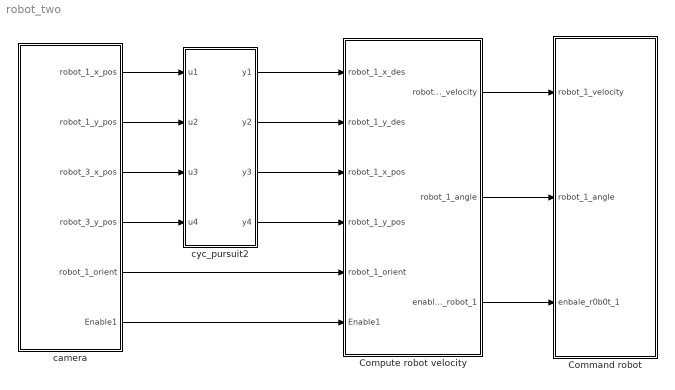
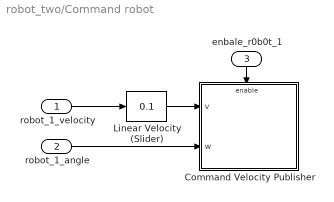
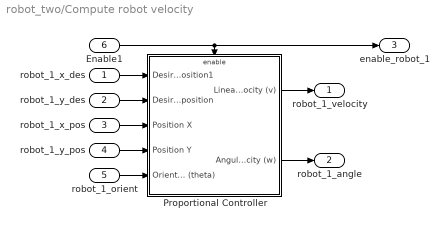
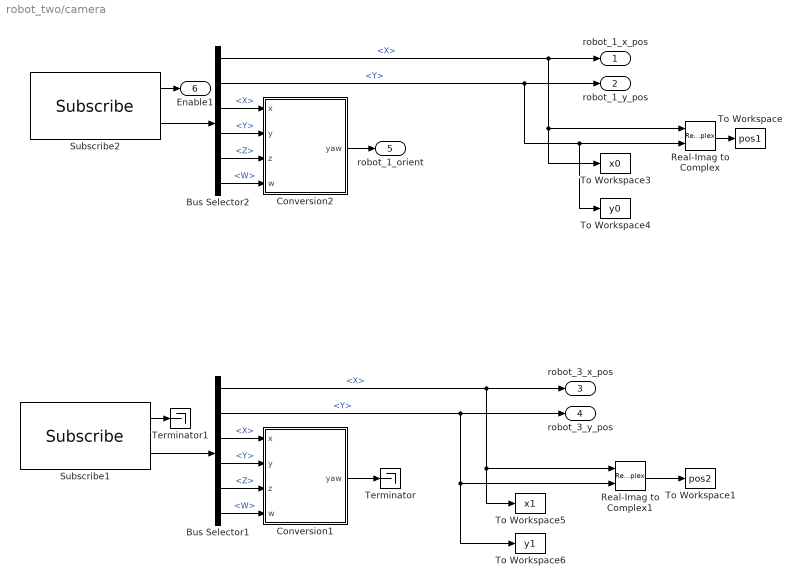
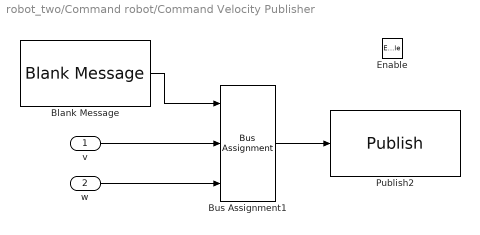
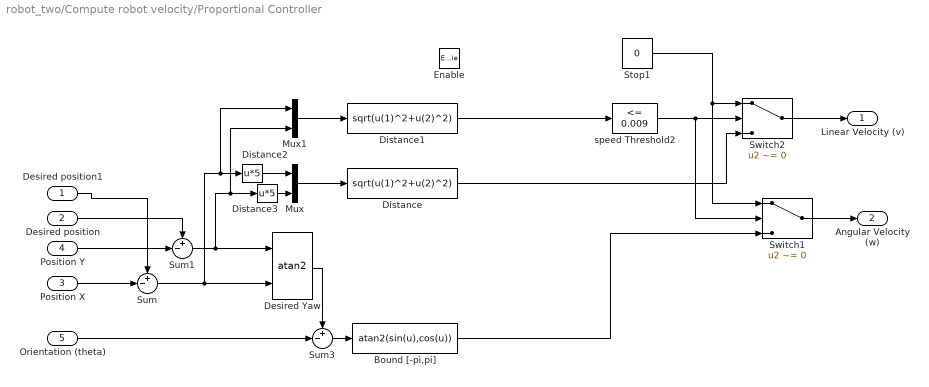
== matlab function robot_two/cyc_pursuit2 ==
function [y1, y2, y3, y4] = fcn(u1, u2, u3, u4)
%#codegen

y1 = ((1-0.2)*u1+(u3*0.2)-(0.75*0.2));
y2 = ((1-0.2)*u2+(0.2*u4)-(1.2990*0.2));
y3=u1;
y4=u2;




%         y1 = ((1-0.2)*u1+(u3*0.2)+(1.5451*0.2));
%         y2 = ((1-0.2)*u2+(0.2*u4)+(4.7553*0.2));
%         y3 = ((1-0.2)*u3+(u5*0.2)-(4.0451*0.2));
%         y4 = ((1-0.2)*u4+(u6*0.2)+(2.9389*0.2));
%         y5 = ((1-0.2)*u5+(u7*0.2)-(4.0451*0.2));
%         y6 = ((1-0.2)*u6+(u8*0.2)-(2.9389*0.2));
%         y7 = ((1-0.2)*u7+(u9*0.2)+(1.5451*0.2));
%         y8 = ((1-0.2)*u8+(u10*0.2)-(4.7553*0.2));
%         y9 = ((1-0.2)*u9+(u1*0.2)+(5*0.2));
%         y10 = ((1-0.2)*u10+(u2*0.2)+(0*0.2));

== matlab function robot_two/camera/Conversion1 ==
function yaw  = quat2eul(x,y,z,w)
%#codegen

% Convert the quaternion to a yaw angle (zyx euler angle)
eul = quat2eul([w,x,y,z]);
yaw = eul(1);

end

== matlab function robot_two/camera/Conversion2 ==
function yaw  = quat2eul(x,y,z,w)
%#codegen

% Convert the quaternion to a yaw angle (zyx euler angle)
eul = quat2eul([w,x,y,z]);
yaw = eul(1);

end

//
// Academic License - for use in teaching, academic research, and meeting
// course requirements at degree granting institutions only.  Not for
// government, commercial, or other organizational use.
//
// File: robot_two.cpp
//
// Code generated for Simulink model 'robot_two'.
//
// Model version                  : 1.17
// Simulink Coder version         : 8.11 (R2016b) 25-Aug-2016
// C/C++ source code generated on : Mon Jan 30 15:01:16 2017
//
// Target selection: ert.tlc
// Embedded hardware selection: Generic->Unspecified (assume 32-bit Generic)
// Code generation objectives: Unspecified
// Validation result: Not run
//
#include "robot_two.h"
#include "robot_two_private.h"
#define robot_two_MessageQueueLen      (105)
#define robot_two_MessageQueueLen_g    (1)

real_T rt_atan2d_snf(real_T u0, real_T u1)
{
  real_T y;
  int32_T u0_0;
  int32_T u1_0;
  if (rtIsNaN(u0) || rtIsNaN(u1)) {
    y = (rtNaN);
  } else if (rtIsInf(u0) && rtIsInf(u1)) {
    if (u0 > 0.0) {
      u0_0 = 1;
    } else {
      u0_0 = -1;
    }

    if (u1 > 0.0) {
      u1_0 = 1;
    } else {
      u1_0 = -1;
    }

    y = atan2((real_T)u0_0, (real_T)u1_0);
  } else if (u1 == 0.0) {
    if (u0 > 0.0) {
      y = RT_PI / 2.0;
    } else if (u0 < 0.0) {
      y = -(RT_PI / 2.0);
    } else {
      y = 0.0;
    }
  } else {
    y = atan2(u0, u1);
  }

  return y;
}

//
// Output and update for atomic system:
//    '<S3>/Conversion1'
//    '<S3>/Conversion2'
//
void robot_two_Conversion1(real_T rtu_x, real_T rtu_y, real_T rtu_z, real_T
  rtu_w, B_Conversion1_robot_two_T *localB)
{
  real_T b_y;
  real_T q_idx_0;
  real_T q_idx_1;
  real_T q_idx_2;

  //  Convert the quaternion to a yaw angle (zyx euler angle)
  // MATLAB Function 'camera/Conversion1': '<S11>:1'
  // '<S11>:1:5' eul = quat2eul([w,x,y,z]);
  b_y = 1.0 / sqrt(((rtu_w * rtu_w + rtu_x * rtu_x) + rtu_y * rtu_y) + rtu_z *
                   rtu_z);
  q_idx_0 = rtu_w * b_y;
  q_idx_1 = rtu_x * b_y;
  q_idx_2 = rtu_y * b_y;
  b_y *= rtu_z;

  // '<S11>:1:6' yaw = eul(1);
  localB->yaw = rt_atan2d_snf((q_idx_1 * q_idx_2 + q_idx_0 * b_y) * 2.0,
    ((q_idx_0 * q_idx_0 + q_idx_1 * q_idx_1) - q_idx_2 * q_idx_2) - b_y * b_y);
}

real_T rt_powd_snf(real_T u0, real_T u1)
{
  real_T y;
  real_T tmp;
  real_T tmp_0;
  if (rtIsNaN(u0) || rtIsNaN(u1)) {
    y = (rtNaN);
  } else {
    tmp = fabs(u0);
    tmp_0 = fabs(u1);
    if (rtIsInf(u1)) {
      if (tmp == 1.0) {
        y = (rtNaN);
      } else if (tmp > 1.0) {
        if (u1 > 0.0) {
          y = (rtInf);
        } else {
          y = 0.0;
        }
      } else if (u1 > 0.0) {
        y = 0.0;
      } else {
        y = (rtInf);
      }
    } else if (tmp_0 == 0.0) {
      y = 1.0;
    } else if (tmp_0 == 1.0) {
      if (u1 > 0.0) {
        y = u0;
      } else {
        y = 1.0 / u0;
      }
    } else if (u1 == 2.0) {
      y = u0 * u0;
    } else if ((u1 == 0.5) && (u0 >= 0.0)) {
      y = sqrt(u0);
    } else if ((u0 < 0.0) && (u1 > floor(u1))) {
      y = (rtNaN);
    } else {
      y = pow(u0, u1);
    }
  }

  return y;
}

// Model step function
void robot_0ModelClass::step()
{
  boolean_T varargout_1;
  boolean_T varargout_1_0;

  // Outputs for Atomic SubSystem: '<S3>/Subscribe2'
  // Start for MATLABSystem: '<S14>/SourceBlock' incorporates:
  //   Inport: '<S16>/In1'
  //   MATLABSystem: '<S14>/SourceBlock'

  varargout_1 = Sub_robot_two_11.getLatestMessage(&robot_two_B.varargout_2);

  // Outputs for Enabled SubSystem: '<S14>/Enabled Subsystem' incorporates:
  //   EnablePort: '<S16>/Enable'

  if (varargout_1) {
    robot_two_B.In1 = robot_two_B.varargout_2;
  }

  // End of Outputs for SubSystem: '<S14>/Enabled Subsystem'
  // End of Outputs for SubSystem: '<S3>/Subscribe2'

  // Outputs for Atomic SubSystem: '<S3>/Subscribe1'
  // Start for MATLABSystem: '<S13>/SourceBlock' incorporates:
  //   Inport: '<S15>/In1'
  //   MATLABSystem: '<S13>/SourceBlock'

  varargout_1_0 = Sub_robot_two_10.getLatestMessage(&robot_two_B.varargout_2);

  // Outputs for Enabled SubSystem: '<S13>/Enabled Subsystem' incorporates:
  //   EnablePort: '<S15>/Enable'

  if (varargout_1_0) {
    robot_two_B.In1_d = robot_two_B.varargout_2;
  }

  // End of Start for MATLABSystem: '<S13>/SourceBlock'
  // End of Outputs for SubSystem: '<S13>/Enabled Subsystem'
  // End of Outputs for SubSystem: '<S3>/Subscribe1'

  // MATLAB Function: '<S3>/Conversion2'
  // MATLAB Function 'cyc_pursuit2': '<S4>:1'
  // '<S4>:1:4' y1 = ((1-0.2)*u1+(u3*0.2)-(0.75*0.2));
  // '<S4>:1:5' y2 = ((1-0.2)*u2+(0.2*u4)-(1.2990*0.2));
  // '<S4>:1:6' y3=u1;
  // '<S4>:1:7' y4=u2;
  //          y1 = ((1-0.2)*u1+(u3*0.2)+(1.5451*0.2));
  //          y2 = ((1-0.2)*u2+(0.2*u4)+(4.7553*0.2));
  //          y3 = ((1-0.2)*u3+(u5*0.2)-(4.0451*0.2));
  //          y4 = ((1-0.2)*u4+(u6*0.2)+(2.9389*0.2));
  //          y5 = ((1-0.2)*u5+(u7*0.2)-(4.0451*0.2));
  //          y6 = ((1-0.2)*u6+(u8*0.2)-(2.9389*0.2));
  //          y7 = ((1-0.2)*u7+(u9*0.2)+(1.5451*0.2));
  //          y8 = ((1-0.2)*u8+(u10*0.2)-(4.7553*0.2));
  //          y9 = ((1-0.2)*u9+(u1*0.2)+(5*0.2));
  //          y10 = ((1-0.2)*u10+(u2*0.2)+(0*0.2));
  robot_two_Conversion1(robot_two_B.In1.Pose.Pose.Orientation.X,
                        robot_two_B.In1.Pose.Pose.Orientation.Y,
                        robot_two_B.In1.Pose.Pose.Orientation.Z,
                        robot_two_B.In1.Pose.Pose.Orientation.W,
                        &robot_two_B.sf_Conversion2);

  // Outputs for Enabled SubSystem: '<S1>/Command Velocity Publisher' incorporates:
  //   EnablePort: '<S5>/Enable'

  // Outputs for Enabled SubSystem: '<S2>/Proportional Controller' incorporates:
  //   EnablePort: '<S9>/Enable'

  // Outputs for Atomic SubSystem: '<S3>/Subscribe2'
  // Start for MATLABSystem: '<S14>/SourceBlock' incorporates:
  //   MATLABSystem: '<S14>/SourceBlock'

  if (varargout_1) {
    // Sum: '<S9>/Sum1' incorporates:
    //   MATLAB Function: '<Root>/cyc_pursuit2'
    //   SignalConversion: '<S3>/SigConversion_InsertedFor_Bus Selector1_at_outport_1'
    //   SignalConversion: '<S3>/SigConversion_InsertedFor_Bus Selector2_at_outport_1'

    robot_two_B.Sum1 = ((0.8 * robot_two_B.In1.Pose.Pose.Position.Y + 0.2 *
                         robot_two_B.In1_d.Pose.Pose.Position.Y) - 0.2598) -
      robot_two_B.In1.Pose.Pose.Position.Y;

    // Sum: '<S9>/Sum' incorporates:
    //   MATLAB Function: '<Root>/cyc_pursuit2'
    //   SignalConversion: '<S3>/SigConversion_InsertedFor_Bus Selector1_at_outport_0'
    //   SignalConversion: '<S3>/SigConversion_InsertedFor_Bus Selector2_at_outport_0'

    robot_two_B.Sum = ((0.8 * robot_two_B.In1.Pose.Pose.Position.X +
                        robot_two_B.In1_d.Pose.Pose.Position.X * 0.2) -
                       0.15000000000000002) -
      robot_two_B.In1.Pose.Pose.Position.X;

    // Fcn: '<S9>/Distance1'
    robot_two_B.Sum3 = rt_powd_snf(robot_two_B.Sum, 2.0) + rt_powd_snf
      (robot_two_B.Sum1, 2.0);
    if (robot_two_B.Sum3 < 0.0) {
      robot_two_B.Sum3 = -sqrt(-robot_two_B.Sum3);
    } else {
      robot_two_B.Sum3 = sqrt(robot_two_B.Sum3);
    }

    // End of Fcn: '<S9>/Distance1'

    // Switch: '<S9>/Switch1' incorporates:
    //   Constant: '<S10>/Constant'
    //   Constant: '<S9>/Stop1'
    //   Fcn: '<S9>/Bound [-pi,pi]'
    //   RelationalOperator: '<S10>/Compare'
    //   Switch: '<S9>/Switch2'

    if (robot_two_B.Sum3 <= robot_two_P.speedThreshold2_const) {
      robot_two_B.Switch1 = robot_two_P.Stop1_Value;
      robot_two_B.Sum1 = robot_two_P.Stop1_Value;
    } else {
      // Sum: '<S9>/Sum3' incorporates:
      //   Trigonometry: '<S9>/Desired Yaw'

      robot_two_B.Sum3 = rt_atan2d_snf(robot_two_B.Sum1, robot_two_B.Sum) -
        robot_two_B.sf_Conversion2.yaw;
      robot_two_B.Switch1 = rt_atan2d_snf(sin(robot_two_B.Sum3), cos
        (robot_two_B.Sum3));

      // Fcn: '<S9>/Distance3' incorporates:
      //   Fcn: '<S9>/Bound [-pi,pi]'

      robot_two_B.Sum1 *= 5.0;

      // Fcn: '<S9>/Distance2'
      robot_two_B.Sum *= 5.0;

      // Fcn: '<S9>/Distance'
      robot_two_B.Sum3 = rt_powd_snf(robot_two_B.Sum, 2.0) + rt_powd_snf
        (robot_two_B.Sum1, 2.0);
      if (robot_two_B.Sum3 < 0.0) {
        robot_two_B.Sum1 = -sqrt(-robot_two_B.Sum3);
      } else {
        robot_two_B.Sum1 = sqrt(robot_two_B.Sum3);
      }

      // End of Fcn: '<S9>/Distance'
    }

    // End of Switch: '<S9>/Switch1'

    // BusAssignment: '<S5>/Bus Assignment1' incorporates:
    //   Constant: '<S7>/Constant'
    //   Gain: '<S6>/Slider Gain'

    robot_two_B.BusAssignment1 = robot_two_P.Constant_Value_p;
    robot_two_B.BusAssignment1.Linear.X = robot_two_P.LinearVelocitySlider_gain *
      robot_two_B.Sum1;
    robot_two_B.BusAssignment1.Angular.Z = robot_two_B.Switch1;

    // Outputs for Atomic SubSystem: '<S5>/Publish2'
    // Start for MATLABSystem: '<S8>/SinkBlock' incorporates:
    //   MATLABSystem: '<S8>/SinkBlock'

    Pub_robot_two_75.publish(&robot_two_B.BusAssignment1);

    // End of Outputs for SubSystem: '<S5>/Publish2'
  }

  // End of Outputs for SubSystem: '<S3>/Subscribe2'
  // End of Outputs for SubSystem: '<S2>/Proportional Controller'
  // End of Outputs for SubSystem: '<S1>/Command Velocity Publisher'

  // MATLAB Function: '<S3>/Conversion1'
  robot_two_Conversion1(robot_two_B.In1_d.Pose.Pose.Orientation.X,
                        robot_two_B.In1_d.Pose.Pose.Orientation.Y,
                        robot_two_B.In1_d.Pose.Pose.Orientation.Z,
                        robot_two_B.In1_d.Pose.Pose.Orientation.W,
                        &robot_two_B.sf_Conversion1);
}
